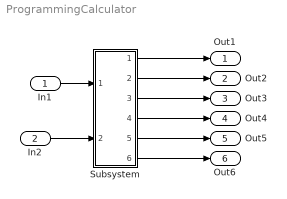
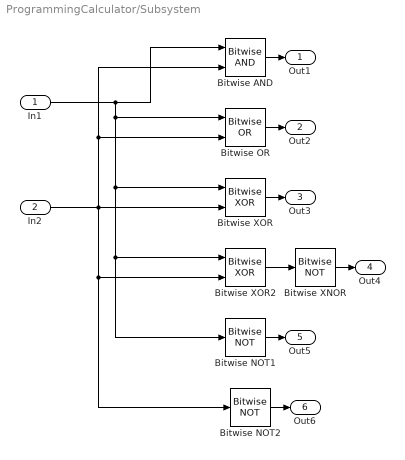
/*
 * File: ProgrammingCalculator.c
 *
 * Code generated for Simulink model 'ProgrammingCalculator'.
 *
 * Model version                  : 1.3
 * Simulink Coder version         : 9.5 (R2021a) 14-Nov-2020
 * C/C++ source code generated on : Thu Jan 25 16:06:51 2024
 *
 * Target selection: ert.tlc
 * Embedded hardware selection: Intel->x86-64 (Windows64)
 * Code generation objectives:
 *    1. RAM efficiency
 *    2. Execution efficiency
 * Validation result: Not run
 */

#include "ProgrammingCalculator.h"
#include "ProgrammingCalculator_private.h"

/* External inputs (root inport signals with default storage) */
ExtU_ProgrammingCalculator_T ProgrammingCalculator_U;

/* External outputs (root outports fed by signals with default storage) */
ExtY_ProgrammingCalculator_T ProgrammingCalculator_Y;

/* Real-time model */
static RT_MODEL_ProgrammingCalculato_T ProgrammingCalculator_M_;
RT_MODEL_ProgrammingCalculato_T *const ProgrammingCalculator_M =
  &ProgrammingCalculator_M_;

/* Model step function */
void ProgrammingCalculator_step(void)
{
  /* Outport: '<Root>/Out1' incorporates:
   *  Inport: '<Root>/In1'
   *  Inport: '<Root>/In2'
   *  S-Function (sfix_bitop): '<S1>/Bitwise AND'
   */
  ProgrammingCalculator_Y.Out1 = (uint8_T)(ProgrammingCalculator_U.In1 &
    ProgrammingCalculator_U.In2);

  /* Outport: '<Root>/Out2' incorporates:
   *  Inport: '<Root>/In1'
   *  Inport: '<Root>/In2'
   *  S-Function (sfix_bitop): '<S1>/Bitwise OR'
   */
  ProgrammingCalculator_Y.Out2 = (uint8_T)(ProgrammingCalculator_U.In1 |
    ProgrammingCalculator_U.In2);

  /* Outport: '<Root>/Out3' incorporates:
   *  Inport: '<Root>/In1'
   *  Inport: '<Root>/In2'
   *  S-Function (sfix_bitop): '<S1>/Bitwise XNOR'
   *  S-Function (sfix_bitop): '<S1>/Bitwise XOR'
   */
  ProgrammingCalculator_Y.Out3 = (uint8_T)(ProgrammingCalculator_U.In1 ^
    ProgrammingCalculator_U.In2);

  /* Outport: '<Root>/Out4' incorporates:
   *  S-Function (sfix_bitop): '<S1>/Bitwise XNOR'
   */
  ProgrammingCalculator_Y.Out4 = (uint8_T)~ProgrammingCalculator_Y.Out3;

  /* Outport: '<Root>/Out5' incorporates:
   *  Inport: '<Root>/In1'
   *  S-Function (sfix_bitop): '<S1>/Bitwise NOT1'
   */
  ProgrammingCalculator_Y.Out5 = (uint8_T)~ProgrammingCalculator_U.In1;

  /* Outport: '<Root>/Out6' incorporates:
   *  Inport: '<Root>/In2'
   *  S-Function (sfix_bitop): '<S1>/Bitwise NOT2'
   */
  ProgrammingCalculator_Y.Out6 = (uint8_T)~ProgrammingCalculator_U.In2;
}
